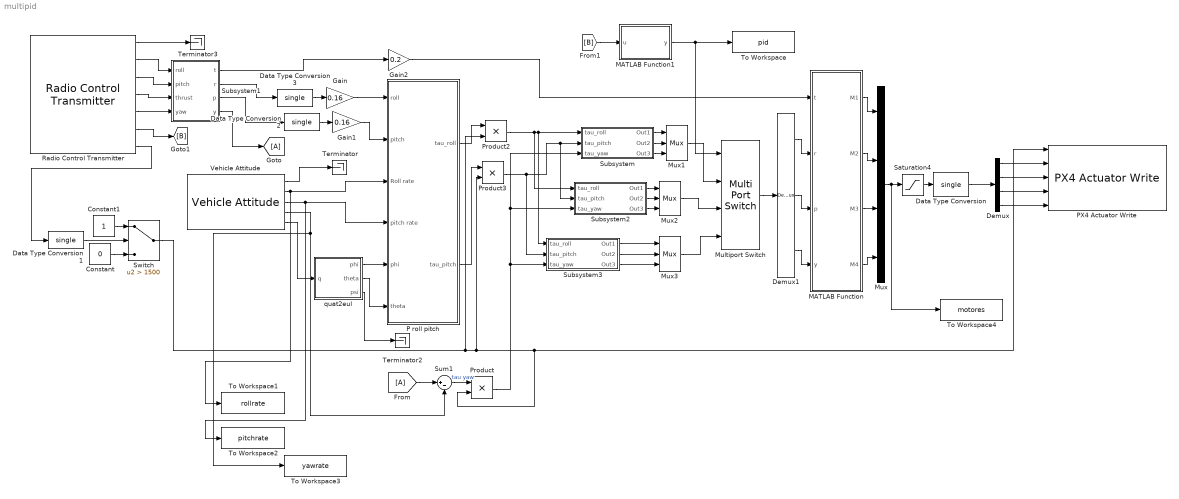
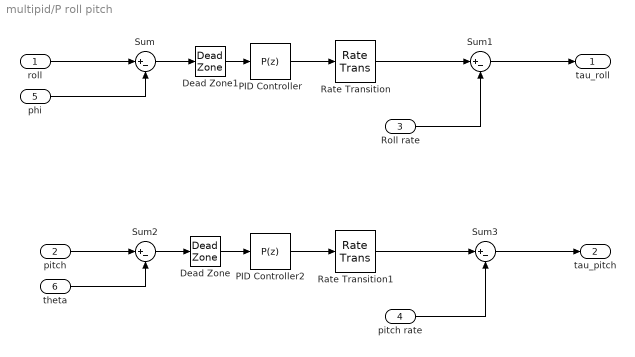
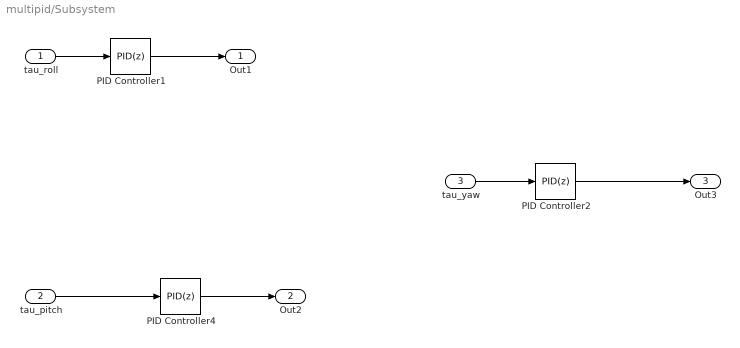
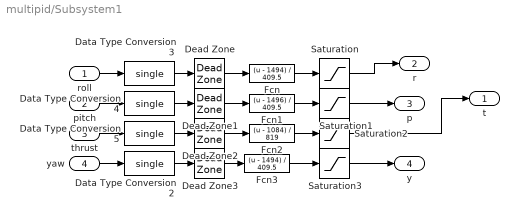
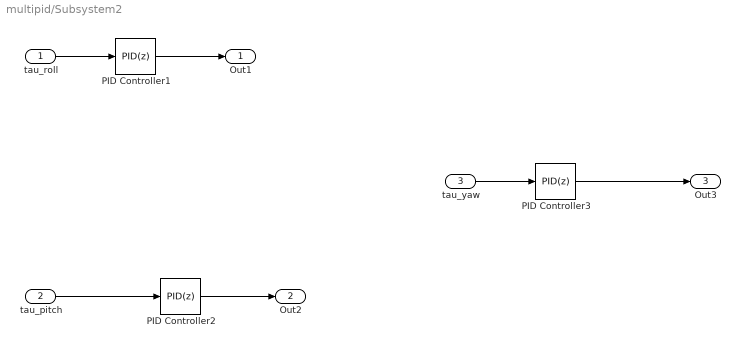
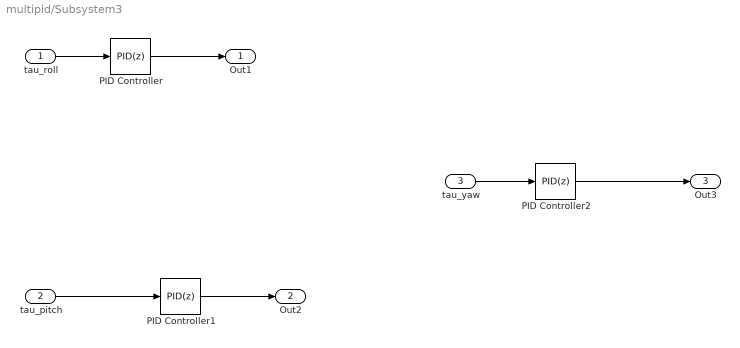
== matlab function multipid/MATLAB Function1 ==
function y = fcn(u)
%#codegen
y=0;
if u>1000 && u<1200 
   y=1;
elseif    u >= 1200 && u<1400
    y=2;
else
    y=3;
end

== matlab function multipid/MATLAB Function ==
function [M1,M2,M3,M4]  = fcn(t,r, p, y)
M1 = t - 0.707107*r + 0.707107*p + y;
M2 = t + 0.707107*r - 0.707107*p + y;
M3 = t + 0.707107*r + 0.707107*p - y;
M4 = t - 0.707107*r - 0.707107*p - y;

== matlab function multipid/quat2eul ==
function [phi,theta,psi] = quat2eul(q)

% Quaternion conversion to Euler angles based on the PX4 Firmware v1.10.2
% release.

phi = atan2(2*(q(1)*q(2) + q(3)* q(4)), q(1)^2 - q(2)^2 - q(3)^2 + q(4)^2);
theta = asin(-2*(q(2)*q(4) - q(1)*q(3)));
psi = atan2(2*(q(2)*q(3) + q(1)* q(4)), q(1)^2 + q(2)^2 - q(3)^2 - q(4)^2);
end

//
// Academic License - for use in teaching, academic research, and meeting
// course requirements at degree granting institutions only.  Not for
// government, commercial, or other organizational use.
//
// File: multipid.cpp
//
// Code generated for Simulink model 'multipid'.
//
// Model version                  : 12.33
// Simulink Coder version         : 25.1 (R2025a) 21-Nov-2024
// C/C++ source code generated on : Wed Jan 28 12:51:51 2026
//
// Target selection: ert.tlc
// Embedded hardware selection: ARM Compatible->ARM Cortex
// Code generation objectives: Unspecified
// Validation result: Not run
//
#include "multipid.h"
#include "multipid_types.h"
#include "multipid_private.h"
#include <math.h>
#include "rtwtypes.h"
#include <string.h>

extern "C"
{

#include "rt_nonfinite.h"

}

#include "rt_defines.h"

// Block signals (default storage)
B_multipid_T multipid_B;

// Block states (default storage)
DW_multipid_T multipid_DW;

// Real-time model
RT_MODEL_multipid_T multipid_M_ = RT_MODEL_multipid_T();
RT_MODEL_multipid_T *const multipid_M = &multipid_M_;

// Forward declaration for local functions
static void multipid_PX4Actuators_setupImpl(px4_internal_block_PX4Actuato_T *obj);
static void rate_monotonic_scheduler(void);

//
// Set which subrates need to run this base step (base rate always runs).
// This function must be called prior to calling the model step function
// in order to remember which rates need to run this base step.  The
// buffering of events allows for overlapping preemption.
//
void multipid_SetEventsForThisBaseStep(boolean_T *eventFlags)
{
  // Task runs when its counter is zero, computed via rtmStepTask macro
  eventFlags[1] = ((boolean_T)rtmStepTask(multipid_M, 1));
}

//
//         This function updates active task flag for each subrate
//         and rate transition flags for tasks that exchange data.
//         The function assumes rate-monotonic multitasking scheduler.
//         The function must be called at model base rate so that
//         the generated code self-manages all its subrates and rate
//         transition flags.
//
static void rate_monotonic_scheduler(void)
{
  // To ensure a deterministic data transfer between two rates,
  //  data is transferred at the priority of a fast task and the frequency
  //  of the slow task.  The following flags indicate when the data transfer
  //  happens.  That is, a rate interaction flag is set true when both rates
  //  will run, and false otherwise.


  // tid 0 shares data with slower tid rate: 1
  multipid_M->Timing.RateInteraction.TID0_1 =
    (multipid_M->Timing.TaskCounters.TID[1] == 0);

  // Compute which subrates run during the next base time step.  Subrates
  //  are an integer multiple of the base rate counter.  Therefore, the subtask
  //  counter is reset when it reaches its limit (zero means run).

  (multipid_M->Timing.TaskCounters.TID[1])++;
  if ((multipid_M->Timing.TaskCounters.TID[1]) > 4) {// Sample time: [0.005s, 0.0s] 
    multipid_M->Timing.TaskCounters.TID[1] = 0;
  }
}

real32_T rt_atan2f_snf(real32_T u0, real32_T u1)
{
  real32_T y;
  if (rtIsNaNF(u0) || rtIsNaNF(u1)) {
    y = (rtNaNF);
  } else if (rtIsInfF(u0) && rtIsInfF(u1)) {
    int32_T tmp;
    int32_T tmp_0;
    if (u0 > 0.0F) {
      tmp = 1;
    } else {
      tmp = -1;
    }

    if (u1 > 0.0F) {
      tmp_0 = 1;
    } else {
      tmp_0 = -1;
    }

    y = static_cast<real32_T>(atan2(static_cast<real_T>(static_cast<real32_T>
      (tmp)), static_cast<real_T>(static_cast<real32_T>(tmp_0))));
  } else if (u1 == 0.0F) {
    if (u0 > 0.0F) {
      y = RT_PIF / 2.0F;
    } else if (u0 < 0.0F) {
      y = -(RT_PIF / 2.0F);
    } else {
      y = 0.0F;
    }
  } else {
    y = static_cast<real32_T>(atan2(static_cast<real_T>(u0), static_cast<real_T>
      (u1)));
  }

  return y;
}

static void multipid_PX4Actuators_setupImpl(px4_internal_block_PX4Actuato_T *obj)
{
  int32_T n;
  int32_T n_0;
  obj->ValidMotorIdx[0] = true;
  obj->ValidMotorIdx[1] = true;
  obj->ValidMotorIdx[2] = true;
  obj->ValidMotorIdx[3] = true;
  n = 0;
  for (int32_T b_k = 0; b_k < 12; b_k++) {
    // Start for MATLABSystem: '<Root>/PX4 Actuator Write'
    if (obj->ValidMotorIdx[b_k]) {
      n++;
    }
  }

  n_0 = 0;
  for (int32_T b_k = 0; b_k < 8; b_k++) {
    // Start for MATLABSystem: '<Root>/PX4 Actuator Write'
    if (obj->ValidServoIdx[b_k]) {
      n_0++;
    }
  }

  // Start for MATLABSystem: '<Root>/PX4 Actuator Write'
  obj->QSize = static_cast<uint8_T>(n + n_0);
  MW_actuators_init(obj->QSize);
}

// Model step function for TID0
void multipid_step0(void)              // Sample time: [0.001s, 0.0s]
{
  int32_T i;
  real32_T M1_tmp;
  real32_T rtb_DeadZone;
  real32_T rtb_Gain2;
  real32_T rtb_MultiportSwitch_idx_0;
  real32_T rtb_MultiportSwitch_idx_1;
  real32_T rtb_MultiportSwitch_idx_2;
  real32_T rtb_Saturation_lx;
  real32_T rtb_Tsamp_ac;
  real32_T rtb_Tsamp_ct;
  real32_T rtb_Tsamp_g;
  real32_T rtb_Tsamp_l;
  real32_T u0;
  boolean_T b_varargout_1;
  boolean_T rtb_Switch;
  boolean_T tmp;

  {                                    // Sample time: [0.001s, 0.0s]
    rate_monotonic_scheduler();
  }

  // Reset subsysRan breadcrumbs
  srClearBC(multipid_DW.EnabledSubsystem_SubsysRanBC_h);

  // Reset subsysRan breadcrumbs
  srClearBC(multipid_DW.EnabledSubsystem_SubsysRanBC);

  // MATLABSystem: '<S117>/SourceBlock'
  b_varargout_1 = uORB_read_step(multipid_DW.obj_l.orbMetadataObj,
    &multipid_DW.obj_l.eventStructObj, &multipid_B.r1, false, 5000.0);

  // Outputs for Enabled SubSystem: '<S117>/Enabled Subsystem' incorporates:
  //   EnablePort: '<S118>/Enable'

  // Start for MATLABSystem: '<S117>/SourceBlock'
  if (b_varargout_1) {
    // SignalConversion generated from: '<S118>/In1'
    multipid_B.In1_k = multipid_B.r1;
    srUpdateBC(multipid_DW.EnabledSubsystem_SubsysRanBC_h);
  }

  // End of Outputs for SubSystem: '<S117>/Enabled Subsystem'

  // MATLAB Function: '<Root>/MATLAB Function1'
  if ((multipid_B.In1_k.values[4] > 1000) && (multipid_B.In1_k.values[4] < 1200))
  {
    multipid_B.y = 1.0;
  } else if ((multipid_B.In1_k.values[4] >= 1200) && (multipid_B.In1_k.values[4]
              < 1400)) {
    multipid_B.y = 2.0;
  } else {
    multipid_B.y = 3.0;
  }

  // End of MATLAB Function: '<Root>/MATLAB Function1'

  // Switch: '<Root>/Switch' incorporates:
  //   Constant: '<Root>/Constant'
  //   Constant: '<Root>/Constant1'
  //   DataTypeConversion: '<Root>/Data Type Conversion1'

  if (multipid_B.In1_k.values[7] > multipid_P.Switch_Threshold) {
    rtb_Switch = multipid_P.Constant1_Value;
  } else {
    rtb_Switch = multipid_P.Constant_Value_b;
  }

  // End of Switch: '<Root>/Switch'

  // RateTransition: '<S3>/Rate Transition' incorporates:
  //   RateTransition generated from: '<S104>/Proportional Gain'
  //   RateTransition: '<S3>/Rate Transition1'
  //   RateTransition generated from: '<S52>/Proportional Gain'

  tmp = multipid_M->Timing.RateInteraction.TID0_1;
  if (tmp) {
    // RateTransition: '<S3>/Rate Transition'
    multipid_B.RateTransition = multipid_DW.RateTransition_Buffer0;
  }

  // End of RateTransition: '<S3>/Rate Transition'

  // MATLABSystem: '<S614>/SourceBlock'
  b_varargout_1 = uORB_read_step(multipid_DW.obj_c.orbMetadataObj,
    &multipid_DW.obj_c.eventStructObj, &multipid_B.r, false, 1.0);

  // Outputs for Enabled SubSystem: '<S614>/Enabled Subsystem' incorporates:
  //   EnablePort: '<S615>/Enable'

  // Start for MATLABSystem: '<S614>/SourceBlock'
  if (b_varargout_1) {
    // SignalConversion generated from: '<S615>/In1'
    multipid_B.In1 = multipid_B.r;
    srUpdateBC(multipid_DW.EnabledSubsystem_SubsysRanBC);
  }

  // End of Outputs for SubSystem: '<S614>/Enabled Subsystem'

  // SignalConversion: '<S9>/Signal Copy'
  multipid_B.rollspeed = multipid_B.In1.angular_velocity[0];

  // Product: '<Root>/Product2' incorporates:
  //   Sum: '<S3>/Sum1'

  multipid_B.Product2 = (multipid_B.RateTransition - multipid_B.rollspeed) *
    static_cast<real32_T>(rtb_Switch);

  // SampleTimeMath: '<S153>/Tsamp' incorporates:
  //   Gain: '<S149>/Derivative Gain'
  //
  //  About '<S153>/Tsamp':
  //   y = u * K where K = 1 / ( w * Ts )
  //
  multipid_B.Tsamp = multipid_P.PIDController1_D * multipid_B.Product2 *
    multipid_P.Tsamp_WtEt;

  // Sum: '<S167>/Sum' incorporates:
  //   Delay: '<S151>/UD'
  //   DiscreteIntegrator: '<S158>/Integrator'
  //   Gain: '<S163>/Proportional Gain'
  //   Sum: '<S151>/Diff'

  multipid_B.Sum_h = (multipid_P.PIDController1_P * multipid_B.Product2 +
                      multipid_DW.Integrator_DSTATE) + (multipid_B.Tsamp -
    multipid_DW.UD_DSTATE);

  // Saturate: '<S165>/Saturation'
  if (multipid_B.Sum_h > multipid_P.PIDController1_UpperSaturationL) {
    multipid_B.Saturation = multipid_P.PIDController1_UpperSaturationL;
  } else if (multipid_B.Sum_h < multipid_P.PIDController1_LowerSaturationL) {
    multipid_B.Saturation = multipid_P.PIDController1_LowerSaturationL;
  } else {
    multipid_B.Saturation = multipid_B.Sum_h;
  }

  // End of Saturate: '<S165>/Saturation'

  // RateTransition: '<S3>/Rate Transition1'
  if (tmp) {
    // RateTransition: '<S3>/Rate Transition1'
    multipid_B.RateTransition1 = multipid_DW.RateTransition1_Buffer0;
  }

  // SignalConversion: '<S9>/Signal Copy1'
  multipid_B.pitchspeed = multipid_B.In1.angular_velocity[1];

  // Product: '<Root>/Product3' incorporates:
  //   Sum: '<S3>/Sum3'

  multipid_B.Product3 = (multipid_B.RateTransition1 - multipid_B.pitchspeed) *
    static_cast<real32_T>(rtb_Switch);

  // SampleTimeMath: '<S261>/Tsamp' incorporates:
  //   Gain: '<S257>/Derivative Gain'
  //
  //  About '<S261>/Tsamp':
  //   y = u * K where K = 1 / ( w * Ts )
  //
  multipid_B.Tsamp_j = multipid_P.PIDController4_D * multipid_B.Product3 *
    multipid_P.Tsamp_WtEt_f;

  // Sum: '<S275>/Sum' incorporates:
  //   Delay: '<S259>/UD'
  //   DiscreteIntegrator: '<S266>/Integrator'
  //   Gain: '<S271>/Proportional Gain'
  //   Sum: '<S259>/Diff'

  multipid_B.Sum_o = (multipid_P.PIDController4_P * multipid_B.Product3 +
                      multipid_DW.Integrator_DSTATE_f) + (multipid_B.Tsamp_j -
    multipid_DW.UD_DSTATE_l);

  // Saturate: '<S273>/Saturation'
  if (multipid_B.Sum_o > multipid_P.PIDController4_UpperSaturationL) {
    multipid_B.Saturation_o = multipid_P.PIDController4_UpperSaturationL;
  } else if (multipid_B.Sum_o < multipid_P.PIDController4_LowerSaturationL) {
    multipid_B.Saturation_o = multipid_P.PIDController4_LowerSaturationL;
  } else {
    multipid_B.Saturation_o = multipid_B.Sum_o;
  }

  // End of Saturate: '<S273>/Saturation'

  // SignalConversion: '<S9>/Signal Copy2'
  multipid_B.yawspeed = multipid_B.In1.angular_velocity[2];

  // DeadZone: '<S6>/Dead Zone3' incorporates:
  //   DataTypeConversion: '<S6>/Data Type Conversion2'

  if (multipid_B.In1_k.values[3] > multipid_P.DeadZone3_End) {
    u0 = static_cast<real32_T>(multipid_B.In1_k.values[3]) -
      multipid_P.DeadZone3_End;
  } else if (multipid_B.In1_k.values[3] >= multipid_P.DeadZone3_Start) {
    u0 = 0.0F;
  } else {
    u0 = static_cast<real32_T>(multipid_B.In1_k.values[3]) -
      multipid_P.DeadZone3_Start;
  }

  // Fcn: '<S6>/Fcn3' incorporates:
  //   DeadZone: '<S6>/Dead Zone3'

  u0 = (u0 - 1494.0F) / 409.5F;

  // Saturate: '<S6>/Saturation3'
  if (u0 > multipid_P.Saturation3_UpperSat) {
    u0 = multipid_P.Saturation3_UpperSat;
  } else if (u0 < multipid_P.Saturation3_LowerSat) {
    u0 = multipid_P.Saturation3_LowerSat;
  }

  // Product: '<Root>/Product' incorporates:
  //   Saturate: '<S6>/Saturation3'
  //   Sum: '<Root>/Sum1'

  multipid_B.Product = (u0 - multipid_B.yawspeed) * static_cast<real32_T>
    (rtb_Switch);

  // SampleTimeMath: '<S207>/Tsamp' incorporates:
  //   Gain: '<S203>/Derivative Gain'
  //
  //  About '<S207>/Tsamp':
  //   y = u * K where K = 1 / ( w * Ts )
  //
  multipid_B.Tsamp_p = multipid_P.PIDController2_D * multipid_B.Product *
    multipid_P.Tsamp_WtEt_fp;

  // Sum: '<S221>/Sum' incorporates:
  //   Delay: '<S205>/UD'
  //   DiscreteIntegrator: '<S212>/Integrator'
  //   Gain: '<S217>/Proportional Gain'
  //   Sum: '<S205>/Diff'

  multipid_B.Sum_a = (multipid_P.PIDController2_P * multipid_B.Product +
                      multipid_DW.Integrator_DSTATE_n) + (multipid_B.Tsamp_p -
    multipid_DW.UD_DSTATE_a);

  // Saturate: '<S219>/Saturation'
  if (multipid_B.Sum_a > multipid_P.PIDController2_UpperSaturationL) {
    multipid_B.Saturation_m = multipid_P.PIDController2_UpperSaturationL;
  } else if (multipid_B.Sum_a < multipid_P.PIDController2_LowerSaturationL) {
    multipid_B.Saturation_m = multipid_P.PIDController2_LowerSaturationL;
  } else {
    multipid_B.Saturation_m = multipid_B.Sum_a;
  }

  // End of Saturate: '<S219>/Saturation'

  // SampleTimeMath: '<S318>/Tsamp' incorporates:
  //   Gain: '<S314>/Derivative Gain'
  //
  //  About '<S318>/Tsamp':
  //   y = u * K where K = 1 / ( w * Ts )
  //
  multipid_B.Tsamp_i = multipid_P.PIDController1_D_j * multipid_B.Product2 *
    multipid_P.Tsamp_WtEt_fi;

  // Sum: '<S332>/Sum' incorporates:
  //   Delay: '<S316>/UD'
  //   DiscreteIntegrator: '<S323>/Integrator'
  //   Gain: '<S328>/Proportional Gain'
  //   Sum: '<S316>/Diff'

  multipid_B.Sum_g = (multipid_P.PIDController1_P_d * multipid_B.Product2 +
                      multipid_DW.Integrator_DSTATE_fy) + (multipid_B.Tsamp_i -
    multipid_DW.UD_DSTATE_k);

  // Saturate: '<S330>/Saturation'
  if (multipid_B.Sum_g > multipid_P.PIDController1_UpperSaturatio_n) {
    multipid_B.Saturation_i = multipid_P.PIDController1_UpperSaturatio_n;
  } else if (multipid_B.Sum_g < multipid_P.PIDController1_LowerSaturatio_i) {
    multipid_B.Saturation_i = multipid_P.PIDController1_LowerSaturatio_i;
  } else {
    multipid_B.Saturation_i = multipid_B.Sum_g;
  }

  // End of Saturate: '<S330>/Saturation'

  // SampleTimeMath: '<S372>/Tsamp' incorporates:
  //   Gain: '<S368>/Derivative Gain'
  //
  //  About '<S372>/Tsamp':
  //   y = u * K where K = 1 / ( w * Ts )
  //
  multipid_B.Tsamp_f = multipid_P.PIDController2_D_m * multipid_B.Product3 *
    multipid_P.Tsamp_WtEt_l;

  // Sum: '<S386>/Sum' incorporates:
  //   Delay: '<S370>/UD'
  //   DiscreteIntegrator: '<S377>/Integrator'
  //   Gain: '<S382>/Proportional Gain'
  //   Sum: '<S370>/Diff'

  multipid_B.Sum_k = (multipid_P.PIDController2_P_p * multipid_B.Product3 +
                      multipid_DW.Integrator_DSTATE_j) + (multipid_B.Tsamp_f -
    multipid_DW.UD_DSTATE_d);

  // Saturate: '<S384>/Saturation'
  if (multipid_B.Sum_k > multipid_P.PIDController2_UpperSaturatio_n) {
    multipid_B.Saturation_n = multipid_P.PIDController2_UpperSaturatio_n;
  } else if (multipid_B.Sum_k < multipid_P.PIDController2_LowerSaturatio_j) {
    multipid_B.Saturation_n = multipid_P.PIDController2_LowerSaturatio_j;
  } else {
    multipid_B.Saturation_n = multipid_B.Sum_k;
  }

  // End of Saturate: '<S384>/Saturation'

  // SampleTimeMath: '<S426>/Tsamp' incorporates:
  //   Gain: '<S422>/Derivative Gain'
  //
  //  About '<S426>/Tsamp':
  //   y = u * K where K = 1 / ( w * Ts )
  //
  rtb_Tsamp_g = multipid_P.PIDController3_D * multipid_B.Product *
    multipid_P.Tsamp_WtEt_n;

  // Sum: '<S440>/Sum' incorporates:
  //   Delay: '<S424>/UD'
  //   DiscreteIntegrator: '<S431>/Integrator'
  //   Gain: '<S436>/Proportional Gain'
  //   Sum: '<S424>/Diff'

  rtb_DeadZone = (multipid_P.PIDController3_P * multipid_B.Product +
                  multipid_DW.Integrator_DSTATE_jr) + (rtb_Tsamp_g -
    multipid_DW.UD_DSTATE_b);

  // Saturate: '<S438>/Saturation'
  if (rtb_DeadZone > multipid_P.PIDController3_UpperSaturationL) {
    rtb_Saturation_lx = multipid_P.PIDController3_UpperSaturationL;
  } else if (rtb_DeadZone < multipid_P.PIDController3_LowerSaturationL) {
    rtb_Saturation_lx = multipid_P.PIDController3_LowerSaturationL;
  } else {
    rtb_Saturation_lx = rtb_DeadZone;
  }

  // End of Saturate: '<S438>/Saturation'

  // SampleTimeMath: '<S483>/Tsamp' incorporates:
  //   Gain: '<S479>/Derivative Gain'
  //
  //  About '<S483>/Tsamp':
  //   y = u * K where K = 1 / ( w * Ts )
  //
  rtb_Tsamp_ct = multipid_P.PIDController_D * multipid_B.Product2 *
    multipid_P.Tsamp_WtEt_c;

  // SampleTimeMath: '<S537>/Tsamp' incorporates:
  //   Gain: '<S533>/Derivative Gain'
  //
  //  About '<S537>/Tsamp':
  //   y = u * K where K = 1 / ( w * Ts )
  //
  rtb_Tsamp_l = multipid_P.PIDController1_D_e * multipid_B.Product3 *
    multipid_P.Tsamp_WtEt_g;

  // SampleTimeMath: '<S591>/Tsamp' incorporates:
  //   Gain: '<S587>/Derivative Gain'
  //
  //  About '<S591>/Tsamp':
  //   y = u * K where K = 1 / ( w * Ts )
  //
  rtb_Tsamp_ac = multipid_P.PIDController2_D_d * multipid_B.Product *
    multipid_P.Tsamp_WtEt_p;

  // MultiPortSwitch: '<Root>/Multiport Switch' incorporates:
  //   Delay: '<S481>/UD'
  //   Delay: '<S535>/UD'
  //   Delay: '<S589>/UD'
  //   DiscreteIntegrator: '<S488>/Integrator'
  //   DiscreteIntegrator: '<S542>/Integrator'
  //   DiscreteIntegrator: '<S596>/Integrator'
  //   Gain: '<S493>/Proportional Gain'
  //   Gain: '<S547>/Proportional Gain'
  //   Gain: '<S601>/Proportional Gain'
  //   Sum: '<S481>/Diff'
  //   Sum: '<S497>/Sum'
  //   Sum: '<S535>/Diff'
  //   Sum: '<S551>/Sum'
  //   Sum: '<S589>/Diff'
  //   Sum: '<S605>/Sum'

  switch (static_cast<int32_T>(multipid_B.y)) {
   case 1:
    rtb_MultiportSwitch_idx_0 = multipid_B.Saturation;
    rtb_MultiportSwitch_idx_1 = multipid_B.Saturation_o;
    rtb_MultiportSwitch_idx_2 = multipid_B.Saturation_m;
    break;

   case 2:
    rtb_MultiportSwitch_idx_0 = multipid_B.Saturation_i;
    rtb_MultiportSwitch_idx_1 = multipid_B.Saturation_n;
    rtb_MultiportSwitch_idx_2 = rtb_Saturation_lx;
    break;

   default:
    rtb_MultiportSwitch_idx_0 = (multipid_P.PIDController_P *
      multipid_B.Product2 + multipid_DW.Integrator_DSTATE_i) + (rtb_Tsamp_ct -
      multipid_DW.UD_DSTATE_du);
    rtb_MultiportSwitch_idx_1 = (multipid_P.PIDController1_P_o *
      multipid_B.Product3 + multipid_DW.Integrator_DSTATE_o) + (rtb_Tsamp_l -
      multipid_DW.UD_DSTATE_do);
    rtb_MultiportSwitch_idx_2 = (multipid_P.PIDController2_P_h *
      multipid_B.Product + multipid_DW.Integrator_DSTATE_iu) + (rtb_Tsamp_ac -
      multipid_DW.UD_DSTATE_h);
    break;
  }

  // End of MultiPortSwitch: '<Root>/Multiport Switch'

  // DeadZone: '<S6>/Dead Zone2' incorporates:
  //   DataTypeConversion: '<S6>/Data Type Conversion5'

  if (multipid_B.In1_k.values[2] > multipid_P.DeadZone2_End) {
    u0 = static_cast<real32_T>(multipid_B.In1_k.values[2]) -
      multipid_P.DeadZone2_End;
  } else if (multipid_B.In1_k.values[2] >= multipid_P.DeadZone2_Start) {
    u0 = 0.0F;
  } else {
    u0 = static_cast<real32_T>(multipid_B.In1_k.values[2]) -
      multipid_P.DeadZone2_Start;
  }

  // Fcn: '<S6>/Fcn2' incorporates:
  //   DeadZone: '<S6>/Dead Zone2'

  u0 = (u0 - 1084.0F) / 819.0F;

  // Saturate: '<S6>/Saturation2'
  if (u0 > multipid_P.Saturation2_UpperSat) {
    u0 = multipid_P.Saturation2_UpperSat;
  } else if (u0 < multipid_P.Saturation2_LowerSat) {
    u0 = multipid_P.Saturation2_LowerSat;
  }

  // Gain: '<Root>/Gain2' incorporates:
  //   Saturate: '<S6>/Saturation2'

  rtb_Gain2 = multipid_P.Gain2_Gain * u0;

  // MATLAB Function: '<Root>/MATLAB Function'
  M1_tmp = 0.707107F * rtb_MultiportSwitch_idx_0;
  u0 = 0.707107F * rtb_MultiportSwitch_idx_1;
  rtb_MultiportSwitch_idx_0 = rtb_Gain2 - M1_tmp;
  multipid_B.M1 = (rtb_MultiportSwitch_idx_0 + u0) + rtb_MultiportSwitch_idx_2;
  rtb_MultiportSwitch_idx_1 = M1_tmp + rtb_Gain2;
  multipid_B.M2 = (rtb_MultiportSwitch_idx_1 - u0) + rtb_MultiportSwitch_idx_2;
  multipid_B.M3 = (rtb_MultiportSwitch_idx_1 + u0) - rtb_MultiportSwitch_idx_2;
  multipid_B.M4 = (rtb_MultiportSwitch_idx_0 - u0) - rtb_MultiportSwitch_idx_2;

  // SignalConversion generated from: '<Root>/To Workspace4'
  multipid_B.TmpSignalConversionAt_asyncqueu[0] = multipid_B.M1;
  multipid_B.TmpSignalConversionAt_asyncqueu[1] = multipid_B.M2;
  multipid_B.TmpSignalConversionAt_asyncqueu[2] = multipid_B.M3;
  multipid_B.TmpSignalConversionAt_asyncqueu[3] = multipid_B.M4;

  // MATLABSystem: '<Root>/PX4 Actuator Write'
  for (i = 0; i < 12; i++) {
    multipid_B.motorValues[i] = (rtNaNF);
  }

  for (i = 0; i < 8; i++) {
    multipid_B.servoValues[i] = (rtNaNF);
  }

  // Saturate: '<Root>/Saturation4'
  if (multipid_B.TmpSignalConversionAt_asyncqueu[0] >
      multipid_P.Saturation4_UpperSat) {
    // MATLABSystem: '<Root>/PX4 Actuator Write'
    multipid_B.motorValues[0] = multipid_P.Saturation4_UpperSat;
  } else if (multipid_B.TmpSignalConversionAt_asyncqueu[0] <
             multipid_P.Saturation4_LowerSat) {
    // MATLABSystem: '<Root>/PX4 Actuator Write'
    multipid_B.motorValues[0] = multipid_P.Saturation4_LowerSat;
  } else {
    // MATLABSystem: '<Root>/PX4 Actuator Write'
    multipid_B.motorValues[0] = multipid_B.TmpSignalConversionAt_asyncqueu[0];
  }

  if (multipid_B.TmpSignalConversionAt_asyncqueu[1] >
      multipid_P.Saturation4_UpperSat) {
    // MATLABSystem: '<Root>/PX4 Actuator Write'
    multipid_B.motorValues[1] = multipid_P.Saturation4_UpperSat;
  } else if (multipid_B.TmpSignalConversionAt_asyncqueu[1] <
             multipid_P.Saturation4_LowerSat) {
    // MATLABSystem: '<Root>/PX4 Actuator Write'
    multipid_B.motorValues[1] = multipid_P.Saturation4_LowerSat;
  } else {
    // MATLABSystem: '<Root>/PX4 Actuator Write'
    multipid_B.motorValues[1] = multipid_B.TmpSignalConversionAt_asyncqueu[1];
  }

  if (multipid_B.TmpSignalConversionAt_asyncqueu[2] >
      multipid_P.Saturation4_UpperSat) {
    // MATLABSystem: '<Root>/PX4 Actuator Write'
    multipid_B.motorValues[2] = multipid_P.Saturation4_UpperSat;
  } else if (multipid_B.TmpSignalConversionAt_asyncqueu[2] <
             multipid_P.Saturation4_LowerSat) {
    // MATLABSystem: '<Root>/PX4 Actuator Write'
    multipid_B.motorValues[2] = multipid_P.Saturation4_LowerSat;
  } else {
    // MATLABSystem: '<Root>/PX4 Actuator Write'
    multipid_B.motorValues[2] = multipid_B.TmpSignalConversionAt_asyncqueu[2];
  }

  if (multipid_B.TmpSignalConversionAt_asyncqueu[3] >
      multipid_P.Saturation4_UpperSat) {
    // MATLABSystem: '<Root>/PX4 Actuator Write'
    multipid_B.motorValues[3] = multipid_P.Saturation4_UpperSat;
  } else if (multipid_B.TmpSignalConversionAt_asyncqueu[3] <
             multipid_P.Saturation4_LowerSat) {
    // MATLABSystem: '<Root>/PX4 Actuator Write'
    multipid_B.motorValues[3] = multipid_P.Saturation4_LowerSat;
  } else {
    // MATLABSystem: '<Root>/PX4 Actuator Write'
    multipid_B.motorValues[3] = multipid_B.TmpSignalConversionAt_asyncqueu[3];
  }

  // End of Saturate: '<Root>/Saturation4'

  // MATLABSystem: '<Root>/PX4 Actuator Write'
  MW_actuators_set(rtb_Switch, &multipid_B.motorValues[0],
                   &multipid_B.servoValues[0]);

  // Gain: '<S421>/Kb' incorporates:
  //   Sum: '<S421>/SumI2'

  rtb_Saturation_lx = (rtb_Saturation_lx - rtb_DeadZone) *
    multipid_P.PIDController3_Kb;

  // DeadZone: '<S6>/Dead Zone' incorporates:
  //   DataTypeConversion: '<S6>/Data Type Conversion3'

  if (multipid_B.In1_k.values[0] > multipid_P.DeadZone_End) {
    u0 = static_cast<real32_T>(multipid_B.In1_k.values[0]) -
      multipid_P.DeadZone_End;
  } else if (multipid_B.In1_k.values[0] >= multipid_P.DeadZone_Start) {
    u0 = 0.0F;
  } else {
    u0 = static_cast<real32_T>(multipid_B.In1_k.values[0]) -
      multipid_P.DeadZone_Start;
  }

  // Fcn: '<S6>/Fcn' incorporates:
  //   DeadZone: '<S6>/Dead Zone'

  u0 = (u0 - 1494.0F) / 409.5F;

  // Saturate: '<S6>/Saturation'
  if (u0 > multipid_P.Saturation_UpperSat) {
    u0 = multipid_P.Saturation_UpperSat;
  } else if (u0 < multipid_P.Saturation_LowerSat) {
    u0 = multipid_P.Saturation_LowerSat;
  }

  // Sum: '<S3>/Sum' incorporates:
  //   Gain: '<Root>/Gain'
  //   MATLAB Function: '<Root>/quat2eul'
  //   Saturate: '<S6>/Saturation'

  rtb_DeadZone = multipid_P.Gain_Gain * u0 - rt_atan2f_snf((multipid_B.In1.q[0] *
    multipid_B.In1.q[1] + multipid_B.In1.q[2] * multipid_B.In1.q[3]) * 2.0F,
    ((multipid_B.In1.q[0] * multipid_B.In1.q[0] - multipid_B.In1.q[1] *
      multipid_B.In1.q[1]) - multipid_B.In1.q[2] * multipid_B.In1.q[2]) +
    multipid_B.In1.q[3] * multipid_B.In1.q[3]);

  // DeadZone: '<S3>/Dead Zone1'
  if (rtb_DeadZone > multipid_P.DeadZone1_End) {
    rtb_DeadZone -= multipid_P.DeadZone1_End;
  } else if (rtb_DeadZone >= multipid_P.DeadZone1_Start) {
    rtb_DeadZone = 0.0F;
  } else {
    rtb_DeadZone -= multipid_P.DeadZone1_Start;
  }

  // End of DeadZone: '<S3>/Dead Zone1'

  // RateTransition generated from: '<S52>/Proportional Gain'
  if (tmp) {
    multipid_DW.TmpRTBAtProportionalGainInport1 = rtb_DeadZone;
  }

  // DeadZone: '<S6>/Dead Zone1' incorporates:
  //   DataTypeConversion: '<S6>/Data Type Conversion4'

  if (multipid_B.In1_k.values[1] > multipid_P.DeadZone1_End_o) {
    u0 = static_cast<real32_T>(multipid_B.In1_k.values[1]) -
      multipid_P.DeadZone1_End_o;
  } else if (multipid_B.In1_k.values[1] >= multipid_P.DeadZone1_Start_a) {
    u0 = 0.0F;
  } else {
    u0 = static_cast<real32_T>(multipid_B.In1_k.values[1]) -
      multipid_P.DeadZone1_Start_a;
  }

  // Fcn: '<S6>/Fcn1' incorporates:
  //   DeadZone: '<S6>/Dead Zone1'

  u0 = (u0 - 1496.0F) / 409.5F;

  // Saturate: '<S6>/Saturation1'
  if (u0 > multipid_P.Saturation1_UpperSat) {
    u0 = multipid_P.Saturation1_UpperSat;
  } else if (u0 < multipid_P.Saturation1_LowerSat) {
    u0 = multipid_P.Saturation1_LowerSat;
  }

  // Sum: '<S3>/Sum2' incorporates:
  //   Gain: '<Root>/Gain1'
  //   MATLAB Function: '<Root>/quat2eul'
  //   Saturate: '<S6>/Saturation1'

  rtb_DeadZone = multipid_P.Gain1_Gain * u0 - static_cast<real32_T>(asin(
    static_cast<real_T>((multipid_B.In1.q[1] * multipid_B.In1.q[3] -
    multipid_B.In1.q[0] * multipid_B.In1.q[2]) * -2.0F)));

  // DeadZone: '<S3>/Dead Zone'
  if (rtb_DeadZone > multipid_P.DeadZone_End_m) {
    rtb_DeadZone -= multipid_P.DeadZone_End_m;
  } else if (rtb_DeadZone >= multipid_P.DeadZone_Start_i) {
    rtb_DeadZone = 0.0F;
  } else {
    rtb_DeadZone -= multipid_P.DeadZone_Start_i;
  }

  // End of DeadZone: '<S3>/Dead Zone'

  // RateTransition generated from: '<S104>/Proportional Gain'
  if (tmp) {
    multipid_DW.TmpRTBAtProportionalGainInpor_b = rtb_DeadZone;
  }

  // Update for DiscreteIntegrator: '<S158>/Integrator' incorporates:
  //   Gain: '<S148>/Kb'
  //   Gain: '<S155>/Integral Gain'
  //   Sum: '<S148>/SumI2'
  //   Sum: '<S148>/SumI4'

  multipid_DW.Integrator_DSTATE += ((multipid_B.Saturation - multipid_B.Sum_h) *
    multipid_P.PIDController1_Kb_f + multipid_P.PIDController1_I_h *
    multipid_B.Product2) * multipid_P.Integrator_gainval;

  // Update for Delay: '<S151>/UD'
  multipid_DW.UD_DSTATE = multipid_B.Tsamp;

  // Update for DiscreteIntegrator: '<S266>/Integrator' incorporates:
  //   Gain: '<S256>/Kb'
  //   Gain: '<S263>/Integral Gain'
  //   Sum: '<S256>/SumI2'
  //   Sum: '<S256>/SumI4'

  multipid_DW.Integrator_DSTATE_f += ((multipid_B.Saturation_o -
    multipid_B.Sum_o) * multipid_P.PIDController4_Kb +
    multipid_P.PIDController4_I * multipid_B.Product3) *
    multipid_P.Integrator_gainval_n;

  // Update for Delay: '<S259>/UD'
  multipid_DW.UD_DSTATE_l = multipid_B.Tsamp_j;

  // Update for DiscreteIntegrator: '<S212>/Integrator' incorporates:
  //   Gain: '<S202>/Kb'
  //   Gain: '<S209>/Integral Gain'
  //   Sum: '<S202>/SumI2'
  //   Sum: '<S202>/SumI4'

  multipid_DW.Integrator_DSTATE_n += ((multipid_B.Saturation_m -
    multipid_B.Sum_a) * multipid_P.PIDController2_Kb_j +
    multipid_P.PIDController2_I_p * multipid_B.Product) *
    multipid_P.Integrator_gainval_g;

  // Update for Delay: '<S205>/UD'
  multipid_DW.UD_DSTATE_a = multipid_B.Tsamp_p;

  // Update for DiscreteIntegrator: '<S323>/Integrator' incorporates:
  //   Gain: '<S313>/Kb'
  //   Gain: '<S320>/Integral Gain'
  //   Sum: '<S313>/SumI2'
  //   Sum: '<S313>/SumI4'

  multipid_DW.Integrator_DSTATE_fy += ((multipid_B.Saturation_i -
    multipid_B.Sum_g) * multipid_P.PIDController1_Kb +
    multipid_P.PIDController1_I * multipid_B.Product2) *
    multipid_P.Integrator_gainval_i;

  // Update for Delay: '<S316>/UD'
  multipid_DW.UD_DSTATE_k = multipid_B.Tsamp_i;

  // Update for DiscreteIntegrator: '<S377>/Integrator' incorporates:
  //   Gain: '<S367>/Kb'
  //   Gain: '<S374>/Integral Gain'
  //   Sum: '<S367>/SumI2'
  //   Sum: '<S367>/SumI4'

  multipid_DW.Integrator_DSTATE_j += ((multipid_B.Saturation_n -
    multipid_B.Sum_k) * multipid_P.PIDController2_Kb +
    multipid_P.PIDController2_I * multipid_B.Product3) *
    multipid_P.Integrator_gainval_p;

  // Update for Delay: '<S370>/UD'
  multipid_DW.UD_DSTATE_d = multipid_B.Tsamp_f;

  // Update for DiscreteIntegrator: '<S431>/Integrator' incorporates:
  //   Gain: '<S428>/Integral Gain'
  //   Sum: '<S421>/SumI4'

  multipid_DW.Integrator_DSTATE_jr += (multipid_P.PIDController3_I *
    multipid_B.Product + rtb_Saturation_lx) * multipid_P.Integrator_gainval_na;

  // Update for Delay: '<S424>/UD'
  multipid_DW.UD_DSTATE_b = rtb_Tsamp_g;

  // Update for DiscreteIntegrator: '<S488>/Integrator' incorporates:
  //   Gain: '<S485>/Integral Gain'

  multipid_DW.Integrator_DSTATE_i += multipid_P.PIDController_I *
    multipid_B.Product2 * multipid_P.Integrator_gainval_a;

  // Update for Delay: '<S481>/UD'
  multipid_DW.UD_DSTATE_du = rtb_Tsamp_ct;

  // Update for DiscreteIntegrator: '<S542>/Integrator' incorporates:
  //   Gain: '<S539>/Integral Gain'

  multipid_DW.Integrator_DSTATE_o += multipid_P.PIDController1_I_d *
    multipid_B.Product3 * multipid_P.Integrator_gainval_nl;

  // Update for Delay: '<S535>/UD'
  multipid_DW.UD_DSTATE_do = rtb_Tsamp_l;

  // Update for DiscreteIntegrator: '<S596>/Integrator' incorporates:
  //   Gain: '<S593>/Integral Gain'

  multipid_DW.Integrator_DSTATE_iu += multipid_P.PIDController2_I_h *
    multipid_B.Product * multipid_P.Integrator_gainval_c;

  // Update for Delay: '<S589>/UD'
  multipid_DW.UD_DSTATE_h = rtb_Tsamp_ac;

  // Update absolute time
  // The "clockTick0" counts the number of times the code of this task has
  //  been executed. The absolute time is the multiplication of "clockTick0"
  //  and "Timing.stepSize0". Size of "clockTick0" ensures timer will not
  //  overflow during the application lifespan selected.

  multipid_M->Timing.taskTime0 =
    ((time_T)(++multipid_M->Timing.clockTick0)) * multipid_M->Timing.stepSize0;
}

// Model step function for TID1
void multipid_step1(void)              // Sample time: [0.005s, 0.0s]
{
  real32_T rtb_Saturation_f;

  // Gain: '<S52>/Proportional Gain' incorporates:
  //   RateTransition generated from: '<S52>/Proportional Gain'

  rtb_Saturation_f = multipid_P.PIDController_P_e *
    multipid_DW.TmpRTBAtProportionalGainInport1;

  // Saturate: '<S54>/Saturation'
  if (rtb_Saturation_f > multipid_P.PIDController_UpperSaturationLi) {
    rtb_Saturation_f = multipid_P.PIDController_UpperSaturationLi;
  } else if (rtb_Saturation_f < multipid_P.PIDController_LowerSaturationLi) {
    rtb_Saturation_f = multipid_P.PIDController_LowerSaturationLi;
  }

  // End of Saturate: '<S54>/Saturation'

  // RateTransition: '<S3>/Rate Transition'
  multipid_DW.RateTransition_Buffer0 = rtb_Saturation_f;

  // Gain: '<S104>/Proportional Gain' incorporates:
  //   RateTransition generated from: '<S104>/Proportional Gain'

  rtb_Saturation_f = multipid_P.PIDController2_P_o *
    multipid_DW.TmpRTBAtProportionalGainInpor_b;

  // Saturate: '<S106>/Saturation'
  if (rtb_Saturation_f > multipid_P.PIDController2_UpperSaturatio_m) {
    rtb_Saturation_f = multipid_P.PIDController2_UpperSaturatio_m;
  } else if (rtb_Saturation_f < multipid_P.PIDController2_LowerSaturatio_m) {
    rtb_Saturation_f = multipid_P.PIDController2_LowerSaturatio_m;
  }

  // End of Saturate: '<S106>/Saturation'

  // RateTransition: '<S3>/Rate Transition1'
  multipid_DW.RateTransition1_Buffer0 = rtb_Saturation_f;

  // Update absolute time
  // The "clockTick1" counts the number of times the code of this task has
  //  been executed. The resolution of this integer timer is 0.005, which is the step size
  //  of the task. Size of "clockTick1" ensures timer will not overflow during the
  //  application lifespan selected.

  multipid_M->Timing.clockTick1++;
}

// Use this function only if you need to maintain compatibility with an existing static main program.
void multipid_step(int_T tid)
{
  switch (tid) {
   case 0 :
    multipid_step0();
    break;

   case 1 :
    multipid_step1();
    break;

   default :
    // do nothing
    break;
  }
}
